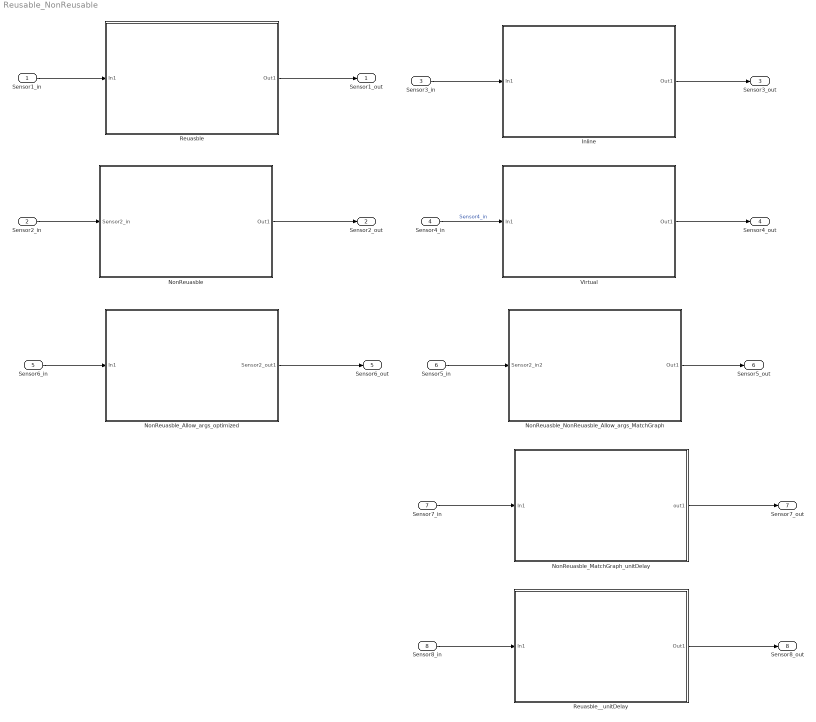
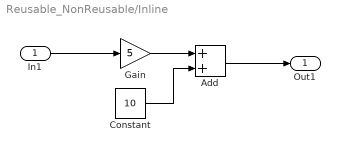
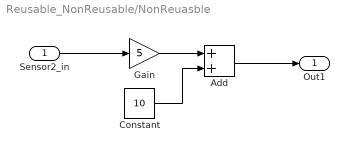
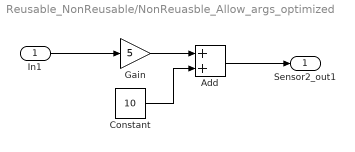
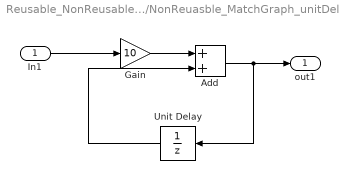
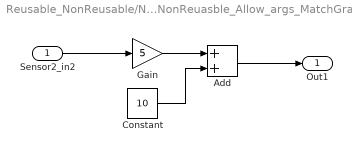
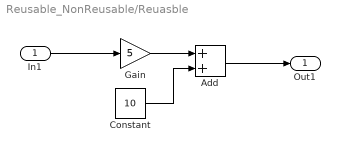
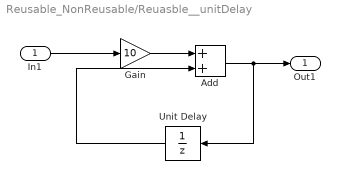
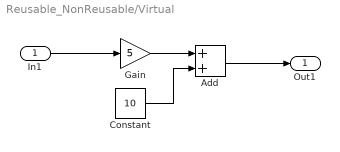
/*
 * File: Reusable_NonReusable.c
 *
 * Code generated for Simulink model 'Reusable_NonReusable'.
 *
 * Model version                  : 1.9
 * Simulink Coder version         : 24.1 (R2024a) 19-Nov-2023
 * C/C++ source code generated on : Sun Jun 14 02:15:59 2026
 *
 * Target selection: ert.tlc
 * Embedded hardware selection: Intel->x86-64 (Windows64)
 * Code generation objectives:
 *    1. Execution efficiency
 *    2. RAM efficiency
 * Validation result: Not run
 */

#include "Reusable_NonReusable.h"
#include "rtwtypes.h"

/* Block signals and states (default storage) */
DW rtDW;

/* External inputs (root inport signals with default storage) */
ExtU rtU;

/* External outputs (root outports fed by signals with default storage) */
ExtY rtY;
static real_T Reuasble(real_T rtu_In1, P_Reuasble *localP);
static void Reuasble__unitDelay_Init(DW_Reuasble__unitDelay *localDW,
  P_Reuasble__unitDelay *localP);
static real_T Reuasble__unitDelay(real_T rtu_In1, DW_Reuasble__unitDelay
  *localDW, P_Reuasble__unitDelay *localP);
static void NonReuasble(void);
static void NonReuasble_Allow_args_optimize(real_T rtu_In1);
static void NonReuasble_MatchGraph_uni_Init(void);
static void NonReuasble_MatchGraph_unitDela(real_T rtu_In1);
static void NonReuasble_NonReuasble_Allow_a(real_T rtu_Sensor2_in2);

/* Output and update for atomic system: '<Root>/NonReuasble' */
static void NonReuasble(void)
{
  /* Outport: '<Root>/Sensor2_out' incorporates:
   *  Constant: '<S2>/Constant'
   *  Gain: '<S2>/Gain'
   *  Inport: '<Root>/Sensor2_in'
   *  Sum: '<S2>/Add'
   */
  rtY.Sensor2_out = rtP.Gain_Gain_c * rtU.Sensor2_in + rtP.Constant_Value_f;
}

/* Output and update for atomic system: '<Root>/NonReuasble_Allow_args_optimized' */
static void NonReuasble_Allow_args_optimize(real_T rtu_In1)
{
  /* Outport: '<Root>/Sensor6_out' incorporates:
   *  Constant: '<S3>/Constant'
   *  Gain: '<S3>/Gain'
   *  Sum: '<S3>/Add'
   */
  rtY.Sensor6_out = rtP.Gain_Gain_o * rtu_In1 + rtP.Constant_Value_p;
}

/* System initialize for atomic system: '<Root>/NonReuasble_MatchGraph_unitDelay' */
static void NonReuasble_MatchGraph_uni_Init(void)
{
  /* InitializeConditions for UnitDelay: '<S4>/Unit Delay' */
  rtDW.UnitDelay_DSTATE = rtP.UnitDelay_InitialCondition;
}

/* Output and update for atomic system: '<Root>/NonReuasble_MatchGraph_unitDelay' */
static void NonReuasble_MatchGraph_unitDela(real_T rtu_In1)
{
  /* Outport: '<Root>/Sensor7_out' incorporates:
   *  Gain: '<S4>/Gain'
   *  Sum: '<S4>/Add'
   *  UnitDelay: '<S4>/Unit Delay'
   */
  rtY.Sensor7_out = rtP.Gain_Gain_p * rtu_In1 + rtDW.UnitDelay_DSTATE;

  /* Update for UnitDelay: '<S4>/Unit Delay' incorporates:
   *  Outport: '<Root>/Sensor7_out'
   */
  rtDW.UnitDelay_DSTATE = rtY.Sensor7_out;
}

/* Output and update for atomic system: '<Root>/NonReuasble_NonReuasble_Allow_args_MatchGraph' */
static void NonReuasble_NonReuasble_Allow_a(real_T rtu_Sensor2_in2)
{
  /* Outport: '<Root>/Sensor5_out' incorporates:
   *  Constant: '<S5>/Constant'
   *  Gain: '<S5>/Gain'
   *  Sum: '<S5>/Add'
   */
  rtY.Sensor5_out = rtP.Gain_Gain_n * rtu_Sensor2_in2 + rtP.Constant_Value_g;
}

/* Output and update for atomic system: '<Root>/Reuasble' */
static real_T Reuasble(real_T rtu_In1, P_Reuasble *localP)
{
  /* Sum: '<S6>/Add' incorporates:
   *  Constant: '<S6>/Constant'
   *  Gain: '<S6>/Gain'
   */
  return localP->Gain_Gain * rtu_In1 + localP->Constant_Value;
}

/* System initialize for atomic system: '<Root>/Reuasble__unitDelay' */
static void Reuasble__unitDelay_Init(DW_Reuasble__unitDelay *localDW,
  P_Reuasble__unitDelay *localP)
{
  /* InitializeConditions for UnitDelay: '<S7>/Unit Delay' */
  localDW->UnitDelay_DSTATE = localP->UnitDelay_InitialCondition;
}

/* Output and update for atomic system: '<Root>/Reuasble__unitDelay' */
static real_T Reuasble__unitDelay(real_T rtu_In1, DW_Reuasble__unitDelay
  *localDW, P_Reuasble__unitDelay *localP)
{
  real_T rty_Out1_0;

  /* Sum: '<S7>/Add' incorporates:
   *  Gain: '<S7>/Gain'
   *  UnitDelay: '<S7>/Unit Delay'
   */
  rty_Out1_0 = localP->Gain_Gain * rtu_In1 + localDW->UnitDelay_DSTATE;

  /* Update for UnitDelay: '<S7>/Unit Delay' */
  localDW->UnitDelay_DSTATE = rty_Out1_0;
  return rty_Out1_0;
}

/* Model step function */
void Reusable_NonReusable_step(void)
{
  /* Outputs for Atomic SubSystem: '<Root>/Reuasble' */

  /* Outport: '<Root>/Sensor1_out' incorporates:
   *  Inport: '<Root>/Sensor1_in'
   */
  rtY.Sensor1_out = Reuasble(rtU.Sensor1_in, &rtP.Reuasble_e);

  /* End of Outputs for SubSystem: '<Root>/Reuasble' */

  /* Outputs for Atomic SubSystem: '<Root>/NonReuasble' */
  NonReuasble();

  /* End of Outputs for SubSystem: '<Root>/NonReuasble' */

  /* Outputs for Atomic SubSystem: '<Root>/Inline' */
  /* Outport: '<Root>/Sensor3_out' incorporates:
   *  Constant: '<S1>/Constant'
   *  Gain: '<S1>/Gain'
   *  Inport: '<Root>/Sensor3_in'
   *  Sum: '<S1>/Add'
   */
  rtY.Sensor3_out = rtP.Gain_Gain * rtU.Sensor3_in + rtP.Constant_Value;

  /* End of Outputs for SubSystem: '<Root>/Inline' */

  /* Outport: '<Root>/Sensor4_out' incorporates:
   *  Constant: '<S8>/Constant'
   *  Gain: '<S8>/Gain'
   *  Inport: '<Root>/Sensor4_in'
   *  Sum: '<S8>/Add'
   */
  rtY.Sensor4_out = rtP.Gain_Gain_d * rtU.Sensor4_in + rtP.Constant_Value_gc;

  /* Outputs for Atomic SubSystem: '<Root>/NonReuasble_Allow_args_optimized' */

  /* Inport: '<Root>/Sensor6_in' */
  NonReuasble_Allow_args_optimize(rtU.Sensor6_in);

  /* End of Outputs for SubSystem: '<Root>/NonReuasble_Allow_args_optimized' */

  /* Outputs for Atomic SubSystem: '<Root>/NonReuasble_NonReuasble_Allow_args_MatchGraph' */

  /* Inport: '<Root>/Sensor5_in' */
  NonReuasble_NonReuasble_Allow_a(rtU.Sensor5_in);

  /* End of Outputs for SubSystem: '<Root>/NonReuasble_NonReuasble_Allow_args_MatchGraph' */

  /* Outputs for Atomic SubSystem: '<Root>/NonReuasble_MatchGraph_unitDelay' */

  /* Inport: '<Root>/Sensor7_in' */
  NonReuasble_MatchGraph_unitDela(rtU.Sensor7_in);

  /* End of Outputs for SubSystem: '<Root>/NonReuasble_MatchGraph_unitDelay' */

  /* Outputs for Atomic SubSystem: '<Root>/Reuasble__unitDelay' */

  /* Outport: '<Root>/Sensor8_out' incorporates:
   *  Inport: '<Root>/Sensor8_in'
   */
  rtY.Sensor8_out = Reuasble__unitDelay(rtU.Sensor8_in,
    &rtDW.Reuasble__unitDelay_a, &rtP.Reuasble__unitDelay_a);

  /* End of Outputs for SubSystem: '<Root>/Reuasble__unitDelay' */
}
